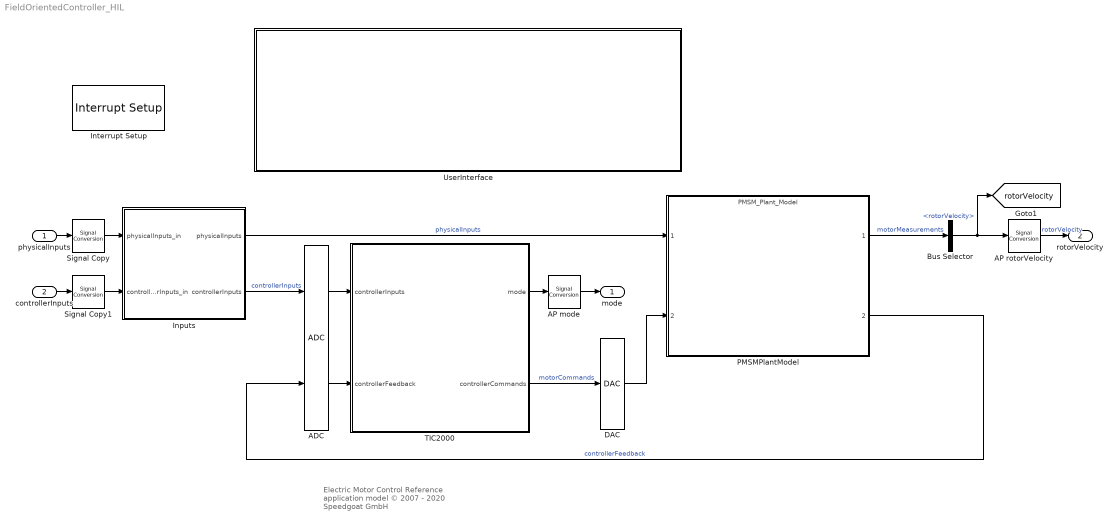
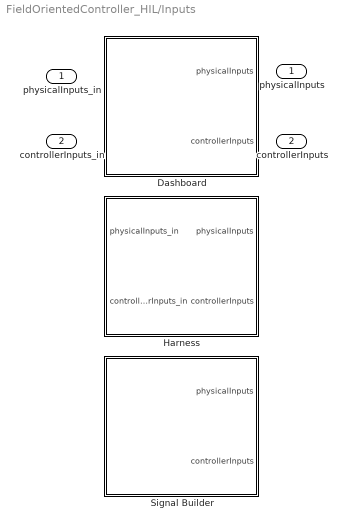
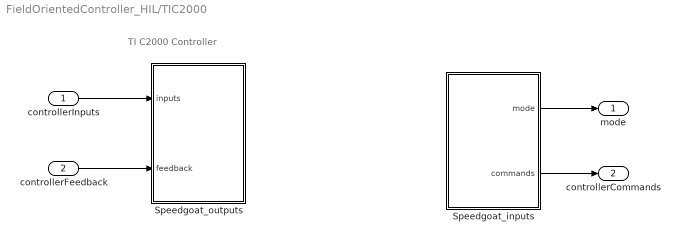
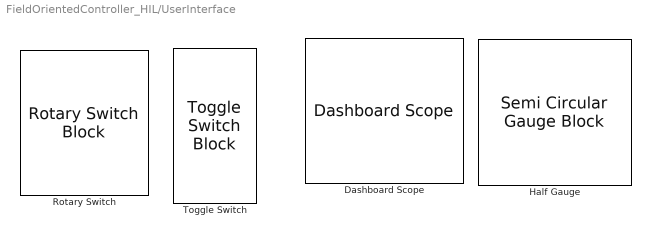
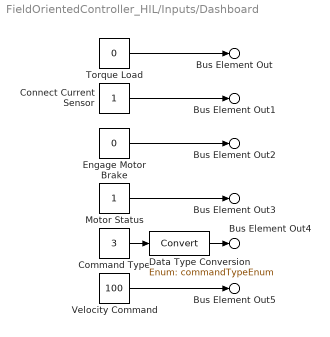
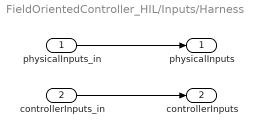
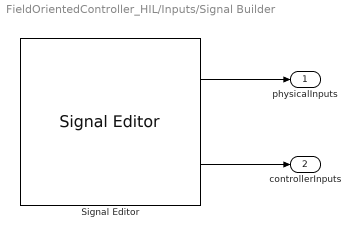
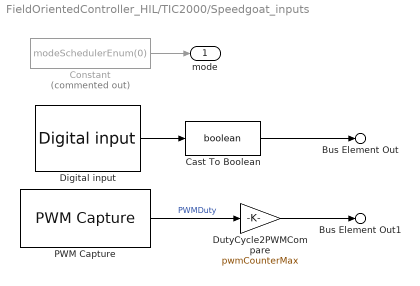
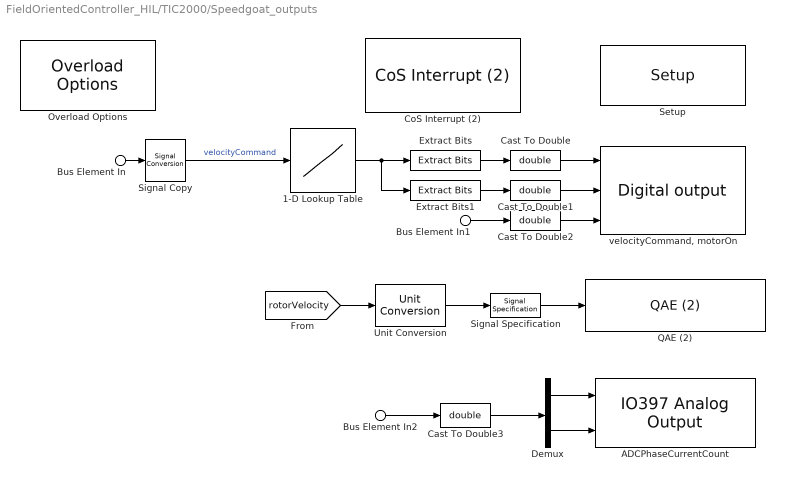
/*
 * FieldOrientedController_HIL.cpp
 *
 * Sponsored Third Party Support License -- for use only to support
 * products interfaced to MathWorks software under terms specified in your
 * company's restricted use license agreement.
 *
 * Code generation for model "FieldOrientedController_HIL".
 *
 * Model version              : 2.17
 * Simulink Coder version : 9.4 (R2020b) 29-Jul-2020
 * C++ source code generated on : Wed Mar  3 11:56:34 2021
 *
 * Target selection: slrealtime.tlc
 * Note: GRT includes extra infrastructure and instrumentation for prototyping
 * Embedded hardware selection: Intel->x86-64 (Linux 64)
 * Code generation objectives: Unspecified
 * Validation result: Not run
 */

#include "FieldOrientedController_HIL.h"
#include "FieldOrientedController_HIL_private.h"
#include "plook_u32f_bincka.h"

rtTimingBridge FieldOrientedController_HIL_TimingBrdg;

/* Block signals (default storage) */
B_FieldOrientedController_HIL_T FieldOrientedController_HIL_B;

/* Block states (default storage) */
DW_FieldOrientedController_HIL_T FieldOrientedController_HIL_DW;

/* External inputs (root inport signals with default storage) */
ExtU_FieldOrientedController_HIL_T FieldOrientedController_HIL_U;

/* External outputs (root outports fed by signals with default storage) */
ExtY_FieldOrientedController_HIL_T FieldOrientedController_HIL_Y;

/* Real-time model */
RT_MODEL_FieldOrientedController_HIL_T FieldOrientedController_HIL_M_ =
  RT_MODEL_FieldOrientedController_HIL_T();
RT_MODEL_FieldOrientedController_HIL_T *const FieldOrientedController_HIL_M =
  &FieldOrientedController_HIL_M_;
const controllerInputs FieldOrientedController_HIL_rtZcontrollerInputs = { false,/* motorOn */
  commandTypeEnum_Error,               /* commandType */
  0.0F                                 /* velocityCommand */
};

void Root_InterruptSetup_callback(void)
{
  // 2.  Call the framework to get the msg receive coid to use in the pulse send in the ISR
  Root_InterruptSetup_D.coid = slrealtime::taskConnectionID( 0 );
  IO397_50k_v2_start_public( Root_InterruptSetup_D.context, 0 );
}

const struct sigevent *Root_InterruptSetup_ISR(void *data, int id)
{
  // For the real interrupt, call the boardISR here
  bool needService = IO397_50k_v2_isr_public( Root_InterruptSetup_D.context );
  if (needService ) {
    Root_InterruptSetup_D.count++;

    // Call the INIT macro again to send the current count.
    SIGEV_PULSE_INT_INIT( &Root_InterruptSetup_D.sig_pulse,
                         Root_InterruptSetup_D.coid,
                         Root_InterruptSetup_D.pri,
                         _PULSE_CODE_MINAVAIL,
                         Root_InterruptSetup_D.count );
    return &Root_InterruptSetup_D.sig_pulse;
  }

  // return a sigevent none if the board didn't interrupt.
  return &Root_InterruptSetup_D.sig_none;
}

/* Model step function */
void FieldOrientedController_HIL_step(void)
{
  real_T tmp;
  uint32_T bpIdx;

  /* SignalConversion: '<Root>/AP mode' */
  FieldOrientedController_HIL_B.APmode = 0.0;

  /* Outport: '<Root>/mode' */
  FieldOrientedController_HIL_Y.mode = FieldOrientedController_HIL_B.APmode;

  /* Constant: '<S6>/Torque Load' */
  FieldOrientedController_HIL_B.TorqueLoad =
    FieldOrientedController_HIL_cal->TorqueLoad_Value;

  /* Constant: '<S6>/Connect Current Sensor' */
  FieldOrientedController_HIL_B.ConnectCurrentSensor =
    FieldOrientedController_HIL_cal->ConnectCurrentSensor_Value;

  /* Constant: '<S6>/Engage Motor Brake' */
  FieldOrientedController_HIL_B.EngageMotorBrake =
    FieldOrientedController_HIL_cal->EngageMotorBrake_Value;

  /* S-Function (sg_fpga_di_sf_a2): '<S7>/Digital input' */

  /* Level2 S-Function Block: '<S7>/Digital input' (sg_fpga_di_sf_a2) */
  {
    SimStruct *rts = FieldOrientedController_HIL_M->childSfunctions[0];
    sfcnOutputs(rts,0);
  }

  /* DataTypeConversion: '<S7>/Cast To Boolean' */
  FieldOrientedController_HIL_B.CastToBoolean =
    (FieldOrientedController_HIL_B.Digitalinput != 0.0);

  /* S-Function (sg_fpga_cap_sf_1): '<S7>/PWM Capture' */

  /* Level2 S-Function Block: '<S7>/PWM Capture' (sg_fpga_cap_sf_1) */
  {
    SimStruct *rts = FieldOrientedController_HIL_M->childSfunctions[1];
    sfcnOutputs(rts,0);
  }

  /* Gain: '<S7>/DutyCycle2PWMCompare' */
  tmp = std::floor(rtP_pwmCounterMax * FieldOrientedController_HIL_B.PWMDuty[0]);
  if (rtIsNaN(tmp) || rtIsInf(tmp)) {
    tmp = 0.0;
  } else {
    tmp = std::fmod(tmp, 65536.0);
  }

  /* Gain: '<S7>/DutyCycle2PWMCompare' */
  FieldOrientedController_HIL_B.DutyCycle2PWMCompare[0] = static_cast<uint16_T>
    (tmp < 0.0 ? static_cast<int32_T>(static_cast<uint16_T>(-static_cast<int16_T>
       (static_cast<uint16_T>(-tmp)))) : static_cast<int32_T>
     (static_cast<uint16_T>(tmp)));

  /* Gain: '<S7>/DutyCycle2PWMCompare' */
  tmp = std::floor(rtP_pwmCounterMax * FieldOrientedController_HIL_B.PWMDuty[1]);
  if (rtIsNaN(tmp) || rtIsInf(tmp)) {
    tmp = 0.0;
  } else {
    tmp = std::fmod(tmp, 65536.0);
  }

  /* Gain: '<S7>/DutyCycle2PWMCompare' */
  FieldOrientedController_HIL_B.DutyCycle2PWMCompare[1] = static_cast<uint16_T>
    (tmp < 0.0 ? static_cast<int32_T>(static_cast<uint16_T>(-static_cast<int16_T>
       (static_cast<uint16_T>(-tmp)))) : static_cast<int32_T>
     (static_cast<uint16_T>(tmp)));

  /* Gain: '<S7>/DutyCycle2PWMCompare' */
  tmp = std::floor(rtP_pwmCounterMax * FieldOrientedController_HIL_B.PWMDuty[2]);
  if (rtIsNaN(tmp) || rtIsInf(tmp)) {
    tmp = 0.0;
  } else {
    tmp = std::fmod(tmp, 65536.0);
  }

  /* Gain: '<S7>/DutyCycle2PWMCompare' */
  FieldOrientedController_HIL_B.DutyCycle2PWMCompare[2] = static_cast<uint16_T>
    (tmp < 0.0 ? static_cast<int32_T>(static_cast<uint16_T>(-static_cast<int16_T>
       (static_cast<uint16_T>(-tmp)))) : static_cast<int32_T>
     (static_cast<uint16_T>(tmp)));

  /* ModelReference generated from: '<Root>/PMSMPlantModel' */
  PMSM_Plant_Model(&FieldOrientedController_HIL_B.TorqueLoad,
                   &FieldOrientedController_HIL_B.ConnectCurrentSensor,
                   &FieldOrientedController_HIL_B.EngageMotorBrake,
                   &FieldOrientedController_HIL_B.CastToBoolean,
                   &FieldOrientedController_HIL_B.DutyCycle2PWMCompare[0],
                   &FieldOrientedController_HIL_B.phaseCurrentA,
                   &FieldOrientedController_HIL_B.phaseCurrentB,
                   &FieldOrientedController_HIL_B.phaseCurrentC,
                   &FieldOrientedController_HIL_B.directCurrent,
                   &FieldOrientedController_HIL_B.quadratureCurrent,
                   &FieldOrientedController_HIL_B.electromagneticTorque,
                   &FieldOrientedController_HIL_B.rotorPosition,
                   &FieldOrientedController_HIL_B.electricalPosition,
                   &FieldOrientedController_HIL_B.rotorVelocity,
                   &FieldOrientedController_HIL_B.electricalVelocity,
                   &FieldOrientedController_HIL_B.transducerVoltage[0],
                   &FieldOrientedController_HIL_B.encoderIndexFound,
                   &FieldOrientedController_HIL_B.encoderCount);

  /* SignalConversion: '<Root>/AP rotorVelocity' */
  FieldOrientedController_HIL_B.rotorVelocity_l =
    FieldOrientedController_HIL_B.rotorVelocity;

  /* Outport: '<Root>/rotorVelocity' */
  FieldOrientedController_HIL_Y.rotorVelocity =
    FieldOrientedController_HIL_B.rotorVelocity_l;

  /* Constant: '<S6>/Motor Status' */
  FieldOrientedController_HIL_B.MotorStatus =
    FieldOrientedController_HIL_cal->MotorStatus_Value;

  /* DataTypeConversion: '<S6>/Data Type Conversion' incorporates:
   *  Constant: '<S6>/Command Type'
   */
  FieldOrientedController_HIL_B.DataTypeConversion = static_cast<commandTypeEnum>
    (FieldOrientedController_HIL_cal->CommandType_Value);

  /* Constant: '<S6>/Velocity Command' */
  FieldOrientedController_HIL_B.VelocityCommand =
    FieldOrientedController_HIL_cal->VelocityCommand_Value;

  /* SignalConversion: '<S8>/Signal Copy' */
  FieldOrientedController_HIL_B.velocityCommand =
    FieldOrientedController_HIL_B.VelocityCommand;

  /* Lookup_n-D: '<S8>/1-D Lookup Table' incorporates:
   *  SignalConversion: '<S8>/Signal Copy'
   */
  bpIdx = plook_u32f_bincka(FieldOrientedController_HIL_B.velocityCommand,
    rtP_velCmdVec, 3U);

  /* Lookup_n-D: '<S8>/1-D Lookup Table' */
  FieldOrientedController_HIL_B.uDLookupTable =
    FieldOrientedController_HIL_cal->uDLookupTable_tableData[bpIdx];

  /* DataTypeConversion: '<S9>/Extract Desired Bits' */
  FieldOrientedController_HIL_B.ExtractDesiredBits = static_cast<uint8_T>(
    static_cast<int32_T>(static_cast<uint32_T>
    (FieldOrientedController_HIL_B.uDLookupTable) >> 1) & 1);

  /* DataTypeConversion: '<S9>/Modify Scaling Only' incorporates:
   *  DataTypeConversion: '<S9>/Extract Desired Bits'
   */
  FieldOrientedController_HIL_B.ModifyScalingOnly =
    FieldOrientedController_HIL_B.ExtractDesiredBits;

  /* DataTypeConversion: '<S8>/Cast To Double' incorporates:
   *  DataTypeConversion: '<S9>/Modify Scaling Only'
   */
  FieldOrientedController_HIL_B.CastToDouble = static_cast<real_T>
    (FieldOrientedController_HIL_B.ModifyScalingOnly) * 2.0;

  /* DataTypeConversion: '<S10>/Extract Desired Bits' */
  FieldOrientedController_HIL_B.ExtractDesiredBits_d = static_cast<uint8_T>
    (FieldOrientedController_HIL_B.uDLookupTable & 1);

  /* DataTypeConversion: '<S10>/Modify Scaling Only' incorporates:
   *  DataTypeConversion: '<S10>/Extract Desired Bits'
   */
  FieldOrientedController_HIL_B.ModifyScalingOnly_c =
    FieldOrientedController_HIL_B.ExtractDesiredBits_d;

  /* DataTypeConversion: '<S8>/Cast To Double1' incorporates:
   *  DataTypeConversion: '<S10>/Modify Scaling Only'
   */
  FieldOrientedController_HIL_B.CastToDouble1 =
    FieldOrientedController_HIL_B.ModifyScalingOnly_c;

  /* DataTypeConversion: '<S8>/Cast To Double2' */
  FieldOrientedController_HIL_B.CastToDouble2 =
    FieldOrientedController_HIL_B.MotorStatus;

  /* S-Function (sg_fpga_do_sf_a2): '<S8>/velocityCommand, motorOn' */

  /* Level2 S-Function Block: '<S8>/velocityCommand, motorOn' (sg_fpga_do_sf_a2) */
  {
    SimStruct *rts = FieldOrientedController_HIL_M->childSfunctions[2];
    sfcnOutputs(rts,0);
  }

  /* DataTypeConversion: '<S8>/Cast To Double3' */
  FieldOrientedController_HIL_B.CastToDouble3[0] =
    FieldOrientedController_HIL_B.transducerVoltage[0];
  FieldOrientedController_HIL_B.CastToDouble3[1] =
    FieldOrientedController_HIL_B.transducerVoltage[1];

  /* S-Function (sg_fpga_IO397_da): '<S8>/ADCPhaseCurrentCount' */

  /* Level2 S-Function Block: '<S8>/ADCPhaseCurrentCount' (sg_fpga_IO397_da) */
  {
    SimStruct *rts = FieldOrientedController_HIL_M->childSfunctions[3];
    sfcnOutputs(rts,0);
  }

  /* UnitConversion: '<S8>/Unit Conversion' */
  /* Unit Conversion - from: rad/sec to: rpm
     Expression: output = (9.5493*input) + (0) */
  FieldOrientedController_HIL_B.UnitConversion = 9.5492965855137211 *
    FieldOrientedController_HIL_B.rotorVelocity;

  /* S-Function (sg_fpga_qae_sf_2): '<S8>/QAE (2)' */

  /* Level2 S-Function Block: '<S8>/QAE (2)' (sg_fpga_qae_sf_2) */
  {
    SimStruct *rts = FieldOrientedController_HIL_M->childSfunctions[4];
    sfcnOutputs(rts,0);
  }

  /* S-Function (overloadoptions): '<S11>/Overload Options Core' */
  *(unsigned int*)FieldOrientedController_HIL_DW.OverloadOptionsCore_PWORK[0] =
    FieldOrientedController_HIL_cal->OverloadOptions_startupDur;
  *(unsigned int*)FieldOrientedController_HIL_DW.OverloadOptionsCore_PWORK[1] =
    FieldOrientedController_HIL_cal->OverloadOptions_maxOverload;
  FieldOrientedController_HIL_B.OverloadOptionsCore = *(unsigned int*)
    FieldOrientedController_HIL_DW.OverloadOptionsCore_PWORK[2];

  /* S-Function (sg_fpga_inta_sf_2): '<S8>/CoS Interrupt (2)' */

  /* Level2 S-Function Block: '<S8>/CoS Interrupt (2)' (sg_fpga_inta_sf_2) */
  {
    SimStruct *rts = FieldOrientedController_HIL_M->childSfunctions[5];
    sfcnOutputs(rts,0);
  }

  /* Update absolute time for base rate */
  /* The "clockTick0" counts the number of times the code of this task has
   * been executed. The absolute time is the multiplication of "clockTick0"
   * and "Timing.stepSize0". Size of "clockTick0" ensures timer will not
   * overflow during the application lifespan selected.
   * Timer of this task consists of two 32 bit unsigned integers.
   * The two integers represent the low bits Timing.clockTick0 and the high bits
   * Timing.clockTickH0. When the low bit overflows to 0, the high bits increment.
   */
  if (!(++FieldOrientedController_HIL_M->Timing.clockTick0)) {
    ++FieldOrientedController_HIL_M->Timing.clockTickH0;
  }

  FieldOrientedController_HIL_M->Timing.t[0] =
    FieldOrientedController_HIL_M->Timing.clockTick0 *
    FieldOrientedController_HIL_M->Timing.stepSize0 +
    FieldOrientedController_HIL_M->Timing.clockTickH0 *
    FieldOrientedController_HIL_M->Timing.stepSize0 * 4294967296.0;
}
